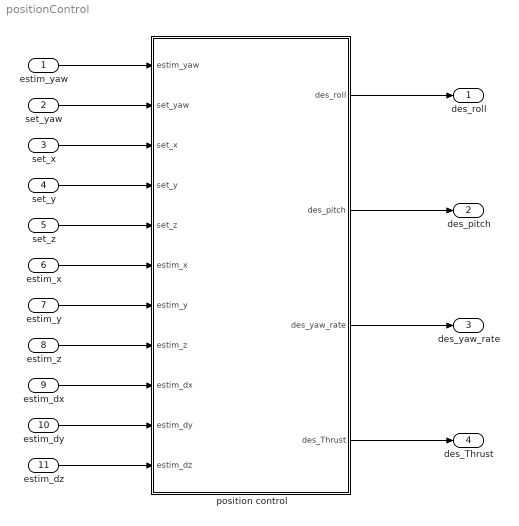
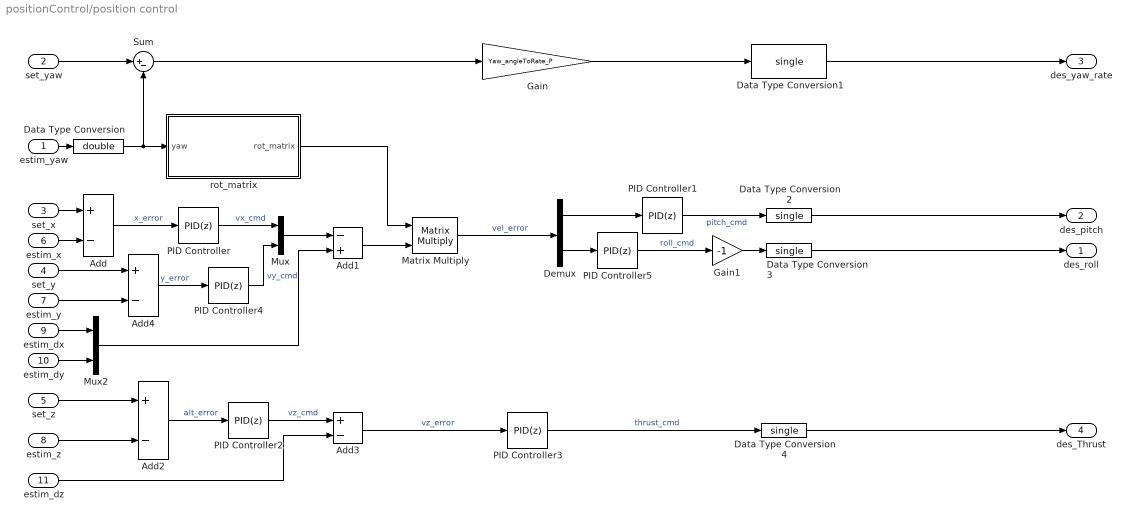
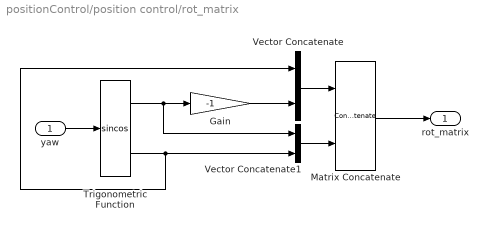
//
// Academic License - for use in teaching, academic research, and meeting
// course requirements at degree granting institutions only.  Not for
// government, commercial, or other organizational use.
//
// File: positionControl.cpp
//
// Code generated for Simulink model 'positionControl'.
//
// Model version                  : 1.7
// Simulink Coder version         : 9.3 (R2020a) 18-Nov-2019
// C/C++ source code generated on : Wed Aug 19 08:09:50 2020
//
// Target selection: ert.tlc
// Embedded hardware selection: ARM Compatible->ARM Cortex
// Code generation objectives: Unspecified
// Validation result: Not run
//
#include "positionControl.h"
#include "positionControl_private.h"

// Exported block parameters
real_T Yaw_angleToRate_P = 0.04;       // Variable: Yaw_angleToRate_P
                                          //  Referenced by: '<S1>/Gain'

real_T pos_x_D = 0.0;                  // Variable: pos_x_D
                                          //  Referenced by: '<S34>/Derivative Gain'

real_T pos_x_I = 0.02;                  // Variable: pos_x_I
                                          //  Referenced by: '<S37>/Integral Gain'

real_T pos_x_P = 0.2;                  // Variable: pos_x_P
                                          //  Referenced by: '<S45>/Proportional Gain'

real_T pos_x_vel_D = 0.001;            // Variable: pos_x_vel_D
                                          //  Referenced by: '<S82>/Derivative Gain'

real_T pos_x_vel_I = 0.02;             // Variable: pos_x_vel_I
                                          //  Referenced by: '<S85>/Integral Gain'

real_T pos_x_vel_P = 0.2;              // Variable: pos_x_vel_P
                                          //  Referenced by: '<S93>/Proportional Gain'

real_T pos_y_I = 0.02;                  // Variable: pos_y_I
                                          //  Referenced by: '<S229>/Integral Gain'

real_T pos_y_P = 0.2;                  // Variable: pos_y_P
                                          //  Referenced by: '<S237>/Proportional Gain'

real_T pos_y_vel_D = 0.001;            // Variable: pos_y_vel_D
                                          //  Referenced by: '<S274>/Derivative Gain'

real_T pos_y_vel_I = 0.02;             // Variable: pos_y_vel_I
                                          //  Referenced by: '<S277>/Integral Gain'

real_T pos_y_vel_P = 0.2;              // Variable: pos_y_vel_P
                                          //  Referenced by: '<S285>/Proportional Gain'

real_T pos_z_D = 0.0;                  // Variable: pos_z_D
                                          //  Referenced by: '<S130>/Derivative Gain'

real_T pos_z_I = 0.0;                  // Variable: pos_z_I
                                          //  Referenced by: '<S133>/Integral Gain'

real_T pos_z_P = 0.6;                  // Variable: pos_z_P
                                          //  Referenced by: '<S141>/Proportional Gain'

real_T pos_z_vel_D = 0.001;            // Variable: pos_z_vel_D
                                          //  Referenced by: '<S178>/Derivative Gain'

real_T pos_z_vel_I = 0.02;              // Variable: pos_z_vel_I
                                          //  Referenced by: '<S181>/Integral Gain'

real_T pos_z_vel_P = 0.4;              // Variable: pos_z_vel_P
                                          //  Referenced by: '<S189>/Proportional Gain'


// Model step function
void positionControlModelClass::step()
{
  real_T sinOut;
  real_T cosOut;
  real_T tmp;
  real_T tmp_0;
  real_T tmp_1;
  real_T u2;

  // DataTypeConversion: '<S1>/Data Type Conversion' incorporates:
  //   Inport: '<Root>/estim_yaw'

  positionControl_B.DataTypeConversion = positionControl_U.estim_yaw;

  // Trigonometry: '<S8>/Trigonometric Function'
  cosOut = positionControl_B.DataTypeConversion;
  sinOut = std::sin(cosOut);
  cosOut = std::cos(cosOut);
  positionControl_B.TrigonometricFunction_o1 = sinOut;
  positionControl_B.TrigonometricFunction_o2 = cosOut;

  // SignalConversion generated from: '<S8>/Vector Concatenate'
  positionControl_B.MatrixConcatenate[0] =
    positionControl_B.TrigonometricFunction_o2;

  // Gain: '<S8>/Gain'
  positionControl_B.MatrixConcatenate[1] = positionControl_P.Gain_Gain *
    positionControl_B.TrigonometricFunction_o1;

  // SignalConversion generated from: '<S8>/Vector Concatenate1'
  positionControl_B.MatrixConcatenate[2] =
    positionControl_B.TrigonometricFunction_o1;

  // SignalConversion generated from: '<S8>/Vector Concatenate1'
  positionControl_B.MatrixConcatenate[3] =
    positionControl_B.TrigonometricFunction_o2;

  // Sum: '<S1>/Add' incorporates:
  //   Inport: '<Root>/estim_x'
  //   Inport: '<Root>/set_x'

  positionControl_B.x_error = positionControl_U.set_x -
    positionControl_U.estim_x;

  // Gain: '<S45>/Proportional Gain'
  positionControl_B.ProportionalGain = pos_x_P * positionControl_B.x_error;

  // DiscreteIntegrator: '<S40>/Integrator'
  positionControl_B.Integrator = positionControl_DW.Integrator_DSTATE;

  // Gain: '<S34>/Derivative Gain'
  positionControl_B.DerivativeGain = pos_x_D * positionControl_B.x_error;

  // DiscreteIntegrator: '<S35>/Filter'
  positionControl_B.Filter = positionControl_DW.Filter_DSTATE;

  // Sum: '<S35>/SumD'
  positionControl_B.SumD = positionControl_B.DerivativeGain -
    positionControl_B.Filter;

  // Gain: '<S43>/Filter Coefficient'
  positionControl_B.FilterCoefficient = positionControl_P.PIDController_N *
    positionControl_B.SumD;

  // Sum: '<S49>/Sum'
  positionControl_B.Sum = positionControl_B.ProportionalGain +
    positionControl_B.Integrator + positionControl_B.FilterCoefficient;

  // Saturate: '<S47>/Saturation'
  cosOut = positionControl_B.Sum;
  sinOut = positionControl_P.PIDController_LowerSaturationLi;
  u2 = positionControl_P.PIDController_UpperSaturationLi;
  if (cosOut > u2) {
    positionControl_B.Saturation = u2;
  } else if (cosOut < sinOut) {
    positionControl_B.Saturation = sinOut;
  } else {
    positionControl_B.Saturation = cosOut;
  }

  // End of Saturate: '<S47>/Saturation'

  // Sum: '<S1>/Add4' incorporates:
  //   Inport: '<Root>/estim_y'
  //   Inport: '<Root>/set_y'

  positionControl_B.y_error = positionControl_U.set_y -
    positionControl_U.estim_y;

  // Gain: '<S237>/Proportional Gain'
  positionControl_B.ProportionalGain_p = pos_y_P * positionControl_B.y_error;

  // DiscreteIntegrator: '<S232>/Integrator'
  positionControl_B.Integrator_f = positionControl_DW.Integrator_DSTATE_k;

  // Gain: '<S226>/Derivative Gain'
  positionControl_B.DerivativeGain_n = positionControl_P.pos_y_D *
    positionControl_B.y_error;

  // DiscreteIntegrator: '<S227>/Filter'
  positionControl_B.Filter_p = positionControl_DW.Filter_DSTATE_m;

  // Sum: '<S227>/SumD'
  positionControl_B.SumD_k = positionControl_B.DerivativeGain_n -
    positionControl_B.Filter_p;

  // Gain: '<S235>/Filter Coefficient'
  positionControl_B.FilterCoefficient_n = positionControl_P.PIDController4_N *
    positionControl_B.SumD_k;

  // Sum: '<S241>/Sum'
  positionControl_B.Sum_k = positionControl_B.ProportionalGain_p +
    positionControl_B.Integrator_f + positionControl_B.FilterCoefficient_n;

  // Saturate: '<S239>/Saturation'
  cosOut = positionControl_B.Sum_k;
  sinOut = positionControl_P.PIDController4_LowerSaturationL;
  u2 = positionControl_P.PIDController4_UpperSaturationL;
  if (cosOut > u2) {
    positionControl_B.Saturation_o = u2;
  } else if (cosOut < sinOut) {
    positionControl_B.Saturation_o = sinOut;
  } else {
    positionControl_B.Saturation_o = cosOut;
  }

  // End of Saturate: '<S239>/Saturation'

  // Sum: '<S1>/Add1' incorporates:
  //   Inport: '<Root>/estim_dx'
  //   Inport: '<Root>/estim_dy'

  positionControl_B.Add1[0] = positionControl_U.estim_dx -
    positionControl_B.Saturation;
  positionControl_B.Add1[1] = positionControl_U.estim_dy -
    positionControl_B.Saturation_o;

  // Product: '<S1>/Matrix Multiply'
  cosOut = positionControl_B.MatrixConcatenate[0];
  sinOut = positionControl_B.MatrixConcatenate[1];
  u2 = positionControl_B.MatrixConcatenate[2];
  tmp = positionControl_B.MatrixConcatenate[3];
  tmp_0 = positionControl_B.Add1[0];
  tmp_1 = positionControl_B.Add1[1];
  cosOut *= tmp_0;
  cosOut += u2 * tmp_1;
  positionControl_B.vel_error[0] = cosOut;
  sinOut *= tmp_0;
  sinOut += tmp * tmp_1;
  positionControl_B.vel_error[1] = sinOut;

  // Gain: '<S285>/Proportional Gain'
  positionControl_B.ProportionalGain_m = pos_y_vel_P *
    positionControl_B.vel_error[1];

  // DiscreteIntegrator: '<S280>/Integrator'
  positionControl_B.Integrator_h = positionControl_DW.Integrator_DSTATE_f;

  // Gain: '<S274>/Derivative Gain'
  positionControl_B.DerivativeGain_c = pos_y_vel_D *
    positionControl_B.vel_error[1];

  // DiscreteIntegrator: '<S275>/Filter'
  positionControl_B.Filter_g = positionControl_DW.Filter_DSTATE_j;

  // Sum: '<S275>/SumD'
  positionControl_B.SumD_f = positionControl_B.DerivativeGain_c -
    positionControl_B.Filter_g;

  // Gain: '<S283>/Filter Coefficient'
  positionControl_B.FilterCoefficient_e = positionControl_P.PIDController5_N *
    positionControl_B.SumD_f;

  // Sum: '<S289>/Sum'
  positionControl_B.Sum_m = positionControl_B.ProportionalGain_m +
    positionControl_B.Integrator_h + positionControl_B.FilterCoefficient_e;

  // Saturate: '<S287>/Saturation'
  cosOut = positionControl_B.Sum_m;
  sinOut = positionControl_P.PIDController5_LowerSaturationL;
  u2 = positionControl_P.PIDController5_UpperSaturationL;
  if (cosOut > u2) {
    positionControl_B.Saturation_l = u2;
  } else if (cosOut < sinOut) {
    positionControl_B.Saturation_l = sinOut;
  } else {
    positionControl_B.Saturation_l = cosOut;
  }

  // End of Saturate: '<S287>/Saturation'

  // Gain: '<S1>/Gain1'
  positionControl_B.Gain1 = positionControl_P.Gain1_Gain *
    positionControl_B.Saturation_l;

  // Outport: '<Root>/des_roll' incorporates:
  //   DataTypeConversion: '<S1>/Data Type Conversion3'

  positionControl_Y.des_roll = static_cast<real32_T>(positionControl_B.Gain1);

  // Gain: '<S93>/Proportional Gain'
  positionControl_B.ProportionalGain_h = pos_x_vel_P *
    positionControl_B.vel_error[0];

  // DiscreteIntegrator: '<S88>/Integrator'
  positionControl_B.Integrator_c = positionControl_DW.Integrator_DSTATE_m;

  // Gain: '<S82>/Derivative Gain'
  positionControl_B.DerivativeGain_p = pos_x_vel_D *
    positionControl_B.vel_error[0];

  // DiscreteIntegrator: '<S83>/Filter'
  positionControl_B.Filter_i = positionControl_DW.Filter_DSTATE_d;

  // Sum: '<S83>/SumD'
  positionControl_B.SumD_h = positionControl_B.DerivativeGain_p -
    positionControl_B.Filter_i;

  // Gain: '<S91>/Filter Coefficient'
  positionControl_B.FilterCoefficient_f = positionControl_P.PIDController1_N *
    positionControl_B.SumD_h;

  // Sum: '<S97>/Sum'
  positionControl_B.Sum_o = positionControl_B.ProportionalGain_h +
    positionControl_B.Integrator_c + positionControl_B.FilterCoefficient_f;

  // Saturate: '<S95>/Saturation'
  cosOut = positionControl_B.Sum_o;
  sinOut = positionControl_P.PIDController1_LowerSaturationL;
  u2 = positionControl_P.PIDController1_UpperSaturationL;
  if (cosOut > u2) {
    positionControl_B.Saturation_j = u2;
  } else if (cosOut < sinOut) {
    positionControl_B.Saturation_j = sinOut;
  } else {
    positionControl_B.Saturation_j = cosOut;
  }

  // End of Saturate: '<S95>/Saturation'

  // Outport: '<Root>/des_pitch' incorporates:
  //   DataTypeConversion: '<S1>/Data Type Conversion2'

  positionControl_Y.des_pitch = static_cast<real32_T>
    (positionControl_B.Saturation_j);

  // Sum: '<S1>/Sum' incorporates:
  //   Inport: '<Root>/set_yaw'

  positionControl_B.Sum_my = positionControl_U.set_yaw -
    positionControl_B.DataTypeConversion;

  // Gain: '<S1>/Gain'
  positionControl_B.Gain = Yaw_angleToRate_P * positionControl_B.Sum_my;

  // Outport: '<Root>/des_yaw_rate' incorporates:
  //   DataTypeConversion: '<S1>/Data Type Conversion1'

  positionControl_Y.des_yaw_rate = static_cast<real32_T>(positionControl_B.Gain);

  // Sum: '<S1>/Add2' incorporates:
  //   Inport: '<Root>/estim_z'
  //   Inport: '<Root>/set_z'

  positionControl_B.alt_error = positionControl_U.set_z -
    positionControl_U.estim_z;

  // Gain: '<S141>/Proportional Gain'
  positionControl_B.ProportionalGain_p4 = pos_z_P * positionControl_B.alt_error;

  // DiscreteIntegrator: '<S136>/Integrator'
  positionControl_B.Integrator_b = positionControl_DW.Integrator_DSTATE_j;

  // Gain: '<S130>/Derivative Gain'
  positionControl_B.DerivativeGain_b = pos_z_D * positionControl_B.alt_error;

  // DiscreteIntegrator: '<S131>/Filter'
  positionControl_B.Filter_o = positionControl_DW.Filter_DSTATE_mf;

  // Sum: '<S131>/SumD'
  positionControl_B.SumD_m = positionControl_B.DerivativeGain_b -
    positionControl_B.Filter_o;

  // Gain: '<S139>/Filter Coefficient'
  positionControl_B.FilterCoefficient_d = positionControl_P.PIDController2_N *
    positionControl_B.SumD_m;

  // Sum: '<S145>/Sum'
  positionControl_B.Sum_f = positionControl_B.ProportionalGain_p4 +
    positionControl_B.Integrator_b + positionControl_B.FilterCoefficient_d;

  // Saturate: '<S143>/Saturation'
  cosOut = positionControl_B.Sum_f;
  sinOut = positionControl_P.PIDController2_LowerSaturationL;
  u2 = positionControl_P.PIDController2_UpperSaturationL;
  if (cosOut > u2) {
    positionControl_B.Saturation_m = u2;
  } else if (cosOut < sinOut) {
    positionControl_B.Saturation_m = sinOut;
  } else {
    positionControl_B.Saturation_m = cosOut;
  }

  // End of Saturate: '<S143>/Saturation'

  // Sum: '<S1>/Add3' incorporates:
  //   Inport: '<Root>/estim_dz'

  positionControl_B.vz_error = positionControl_B.Saturation_m -
    positionControl_U.estim_dz;

  // Gain: '<S189>/Proportional Gain'
  positionControl_B.ProportionalGain_k = pos_z_vel_P *
    positionControl_B.vz_error;

  // DiscreteIntegrator: '<S184>/Integrator'
  positionControl_B.Integrator_p = positionControl_DW.Integrator_DSTATE_b;

  // Gain: '<S178>/Derivative Gain'
  positionControl_B.DerivativeGain_pu = pos_z_vel_D * positionControl_B.vz_error;

  // DiscreteIntegrator: '<S179>/Filter'
  positionControl_B.Filter_m = positionControl_DW.Filter_DSTATE_e;

  // Sum: '<S179>/SumD'
  positionControl_B.SumD_b = positionControl_B.DerivativeGain_pu -
    positionControl_B.Filter_m;

  // Gain: '<S187>/Filter Coefficient'
  positionControl_B.FilterCoefficient_a = positionControl_P.PIDController3_N *
    positionControl_B.SumD_b;

  // Sum: '<S193>/Sum'
  positionControl_B.Sum_c = positionControl_B.ProportionalGain_k +
    positionControl_B.Integrator_p + positionControl_B.FilterCoefficient_a;

  // Saturate: '<S191>/Saturation'
  cosOut = positionControl_B.Sum_c;
  sinOut = positionControl_P.PIDController3_LowerSaturationL;
  u2 = positionControl_P.PIDController3_UpperSaturationL;
  if (cosOut > u2) {
    positionControl_B.Saturation_li = u2;
  } else if (cosOut < sinOut) {
    positionControl_B.Saturation_li = sinOut;
  } else {
    positionControl_B.Saturation_li = cosOut;
  }

  // End of Saturate: '<S191>/Saturation'

  // Outport: '<Root>/des_Thrust' incorporates:
  //   DataTypeConversion: '<S1>/Data Type Conversion4'

  positionControl_Y.des_Thrust = static_cast<real32_T>
    (positionControl_B.Saturation_li);

  // Gain: '<S37>/Integral Gain'
  positionControl_B.IntegralGain = pos_x_I * positionControl_B.x_error;

  // Gain: '<S81>/ZeroGain'
  positionControl_B.ZeroGain = positionControl_P.ZeroGain_Gain *
    positionControl_B.Sum_o;

  // DeadZone: '<S81>/DeadZone'
  if (positionControl_B.Sum_o >
      positionControl_P.PIDController1_UpperSaturationL) {
    positionControl_B.DeadZone = positionControl_B.Sum_o -
      positionControl_P.PIDController1_UpperSaturationL;
  } else if (positionControl_B.Sum_o >=
             positionControl_P.PIDController1_LowerSaturationL) {
    positionControl_B.DeadZone = 0.0;
  } else {
    positionControl_B.DeadZone = positionControl_B.Sum_o -
      positionControl_P.PIDController1_LowerSaturationL;
  }

  // End of DeadZone: '<S81>/DeadZone'

  // RelationalOperator: '<S81>/NotEqual'
  positionControl_B.NotEqual = positionControl_B.ZeroGain !=
    positionControl_B.DeadZone;

  // Signum: '<S81>/SignPreSat'
  cosOut = positionControl_B.DeadZone;
  if (cosOut < 0.0) {
    positionControl_B.SignPreSat = -1.0;
  } else if (cosOut > 0.0) {
    positionControl_B.SignPreSat = 1.0;
  } else {
    positionControl_B.SignPreSat = cosOut;
  }

  // End of Signum: '<S81>/SignPreSat'

  // DataTypeConversion: '<S81>/DataTypeConv1'
  cosOut = std::fmod(std::floor(positionControl_B.SignPreSat), 256.0);
  positionControl_B.DataTypeConv1 = static_cast<int8_T>(cosOut < 0.0 ?
    static_cast<int32_T>(static_cast<int8_T>(-static_cast<int8_T>
    (static_cast<uint8_T>(-cosOut)))) : static_cast<int32_T>(static_cast<int8_T>
    (static_cast<uint8_T>(cosOut))));

  // Gain: '<S85>/Integral Gain'
  positionControl_B.IntegralGain_k = pos_x_vel_I * positionControl_B.vel_error[0];

  // Signum: '<S81>/SignPreIntegrator'
  cosOut = positionControl_B.IntegralGain_k;
  if (cosOut < 0.0) {
    positionControl_B.SignPreIntegrator = -1.0;
  } else if (cosOut > 0.0) {
    positionControl_B.SignPreIntegrator = 1.0;
  } else {
    positionControl_B.SignPreIntegrator = cosOut;
  }

  // End of Signum: '<S81>/SignPreIntegrator'

  // DataTypeConversion: '<S81>/DataTypeConv2'
  cosOut = std::fmod(std::floor(positionControl_B.SignPreIntegrator), 256.0);
  positionControl_B.DataTypeConv2 = static_cast<int8_T>(cosOut < 0.0 ?
    static_cast<int32_T>(static_cast<int8_T>(-static_cast<int8_T>(static_cast<
    uint8_T>(-cosOut)))) : static_cast<int32_T>(static_cast<int8_T>(static_cast<
    uint8_T>(cosOut))));

  // RelationalOperator: '<S81>/Equal1'
  positionControl_B.Equal1 = positionControl_B.DataTypeConv1 ==
    positionControl_B.DataTypeConv2;

  // Logic: '<S81>/AND3'
  positionControl_B.AND3 = positionControl_B.NotEqual &&
    positionControl_B.Equal1;

  // Switch: '<S81>/Switch' incorporates:
  //   Constant: '<S81>/Constant1'

  if (positionControl_B.AND3) {
    positionControl_B.Switch = positionControl_P.Constant1_Value;
  } else {
    positionControl_B.Switch = positionControl_B.IntegralGain_k;
  }

  // End of Switch: '<S81>/Switch'

  // Gain: '<S229>/Integral Gain'
  positionControl_B.IntegralGain_o = pos_y_I * positionControl_B.y_error;

  // Gain: '<S273>/ZeroGain'
  positionControl_B.ZeroGain_b = positionControl_P.ZeroGain_Gain_m *
    positionControl_B.Sum_m;

  // DeadZone: '<S273>/DeadZone'
  if (positionControl_B.Sum_m >
      positionControl_P.PIDController5_UpperSaturationL) {
    positionControl_B.DeadZone_m = positionControl_B.Sum_m -
      positionControl_P.PIDController5_UpperSaturationL;
  } else if (positionControl_B.Sum_m >=
             positionControl_P.PIDController5_LowerSaturationL) {
    positionControl_B.DeadZone_m = 0.0;
  } else {
    positionControl_B.DeadZone_m = positionControl_B.Sum_m -
      positionControl_P.PIDController5_LowerSaturationL;
  }

  // End of DeadZone: '<S273>/DeadZone'

  // RelationalOperator: '<S273>/NotEqual'
  positionControl_B.NotEqual_p = positionControl_B.ZeroGain_b !=
    positionControl_B.DeadZone_m;

  // Signum: '<S273>/SignPreSat'
  cosOut = positionControl_B.DeadZone_m;
  if (cosOut < 0.0) {
    positionControl_B.SignPreSat_n = -1.0;
  } else if (cosOut > 0.0) {
    positionControl_B.SignPreSat_n = 1.0;
  } else {
    positionControl_B.SignPreSat_n = cosOut;
  }

  // End of Signum: '<S273>/SignPreSat'

  // DataTypeConversion: '<S273>/DataTypeConv1'
  cosOut = std::fmod(std::floor(positionControl_B.SignPreSat_n), 256.0);
  positionControl_B.DataTypeConv1_e = static_cast<int8_T>(cosOut < 0.0 ?
    static_cast<int32_T>(static_cast<int8_T>(-static_cast<int8_T>
    (static_cast<uint8_T>(-cosOut)))) : static_cast<int32_T>(static_cast<int8_T>
    (static_cast<uint8_T>(cosOut))));

  // Gain: '<S277>/Integral Gain'
  positionControl_B.IntegralGain_b = pos_y_vel_I * positionControl_B.vel_error[1];

  // Signum: '<S273>/SignPreIntegrator'
  cosOut = positionControl_B.IntegralGain_b;
  if (cosOut < 0.0) {
    positionControl_B.SignPreIntegrator_n = -1.0;
  } else if (cosOut > 0.0) {
    positionControl_B.SignPreIntegrator_n = 1.0;
  } else {
    positionControl_B.SignPreIntegrator_n = cosOut;
  }

  // End of Signum: '<S273>/SignPreIntegrator'

  // DataTypeConversion: '<S273>/DataTypeConv2'
  cosOut = std::fmod(std::floor(positionControl_B.SignPreIntegrator_n), 256.0);
  positionControl_B.DataTypeConv2_a = static_cast<int8_T>(cosOut < 0.0 ?
    static_cast<int32_T>(static_cast<int8_T>(-static_cast<int8_T>
    (static_cast<uint8_T>(-cosOut)))) : static_cast<int32_T>(static_cast<int8_T>
    (static_cast<uint8_T>(cosOut))));

  // RelationalOperator: '<S273>/Equal1'
  positionControl_B.Equal1_c = positionControl_B.DataTypeConv1_e ==
    positionControl_B.DataTypeConv2_a;

  // Logic: '<S273>/AND3'
  positionControl_B.AND3_n = positionControl_B.NotEqual_p &&
    positionControl_B.Equal1_c;

  // Switch: '<S273>/Switch' incorporates:
  //   Constant: '<S273>/Constant1'

  if (positionControl_B.AND3_n) {
    positionControl_B.Switch_m = positionControl_P.Constant1_Value_n;
  } else {
    positionControl_B.Switch_m = positionControl_B.IntegralGain_b;
  }

  // End of Switch: '<S273>/Switch'

  // Gain: '<S133>/Integral Gain'
  positionControl_B.IntegralGain_f = pos_z_I * positionControl_B.alt_error;

  // Gain: '<S177>/ZeroGain'
  positionControl_B.ZeroGain_e = positionControl_P.ZeroGain_Gain_h *
    positionControl_B.Sum_c;

  // DeadZone: '<S177>/DeadZone'
  if (positionControl_B.Sum_c >
      positionControl_P.PIDController3_UpperSaturationL) {
    positionControl_B.DeadZone_e = positionControl_B.Sum_c -
      positionControl_P.PIDController3_UpperSaturationL;
  } else if (positionControl_B.Sum_c >=
             positionControl_P.PIDController3_LowerSaturationL) {
    positionControl_B.DeadZone_e = 0.0;
  } else {
    positionControl_B.DeadZone_e = positionControl_B.Sum_c -
      positionControl_P.PIDController3_LowerSaturationL;
  }

  // End of DeadZone: '<S177>/DeadZone'

  // RelationalOperator: '<S177>/NotEqual'
  positionControl_B.NotEqual_o = positionControl_B.ZeroGain_e !=
    positionControl_B.DeadZone_e;

  // Signum: '<S177>/SignPreSat'
  cosOut = positionControl_B.DeadZone_e;
  if (cosOut < 0.0) {
    positionControl_B.SignPreSat_h = -1.0;
  } else if (cosOut > 0.0) {
    positionControl_B.SignPreSat_h = 1.0;
  } else {
    positionControl_B.SignPreSat_h = cosOut;
  }

  // End of Signum: '<S177>/SignPreSat'

  // DataTypeConversion: '<S177>/DataTypeConv1'
  cosOut = std::fmod(std::floor(positionControl_B.SignPreSat_h), 256.0);
  positionControl_B.DataTypeConv1_m = static_cast<int8_T>(cosOut < 0.0 ?
    static_cast<int32_T>(static_cast<int8_T>(-static_cast<int8_T>
    (static_cast<uint8_T>(-cosOut)))) : static_cast<int32_T>(static_cast<int8_T>
    (static_cast<uint8_T>(cosOut))));

  // Gain: '<S181>/Integral Gain'
  positionControl_B.IntegralGain_l = pos_z_vel_I * positionControl_B.vz_error;

  // Signum: '<S177>/SignPreIntegrator'
  cosOut = positionControl_B.IntegralGain_l;
  if (cosOut < 0.0) {
    positionControl_B.SignPreIntegrator_d = -1.0;
  } else if (cosOut > 0.0) {
    positionControl_B.SignPreIntegrator_d = 1.0;
  } else {
    positionControl_B.SignPreIntegrator_d = cosOut;
  }

  // End of Signum: '<S177>/SignPreIntegrator'

  // DataTypeConversion: '<S177>/DataTypeConv2'
  cosOut = std::fmod(std::floor(positionControl_B.SignPreIntegrator_d), 256.0);
  positionControl_B.DataTypeConv2_j = static_cast<int8_T>(cosOut < 0.0 ?
    static_cast<int32_T>(static_cast<int8_T>(-static_cast<int8_T>
    (static_cast<uint8_T>(-cosOut)))) : static_cast<int32_T>(static_cast<int8_T>
    (static_cast<uint8_T>(cosOut))));

  // RelationalOperator: '<S177>/Equal1'
  positionControl_B.Equal1_i = positionControl_B.DataTypeConv1_m ==
    positionControl_B.DataTypeConv2_j;

  // Logic: '<S177>/AND3'
  positionControl_B.AND3_nv = positionControl_B.NotEqual_o &&
    positionControl_B.Equal1_i;

  // Switch: '<S177>/Switch' incorporates:
  //   Constant: '<S177>/Constant1'

  if (positionControl_B.AND3_nv) {
    positionControl_B.Switch_e = positionControl_P.Constant1_Value_k;
  } else {
    positionControl_B.Switch_e = positionControl_B.IntegralGain_l;
  }

  // End of Switch: '<S177>/Switch'

  // Update for DiscreteIntegrator: '<S40>/Integrator'
  positionControl_DW.Integrator_DSTATE += positionControl_P.Integrator_gainval *
    positionControl_B.IntegralGain;

  // Update for DiscreteIntegrator: '<S35>/Filter'
  positionControl_DW.Filter_DSTATE += positionControl_P.Filter_gainval *
    positionControl_B.FilterCoefficient;

  // Update for DiscreteIntegrator: '<S232>/Integrator'
  positionControl_DW.Integrator_DSTATE_k +=
    positionControl_P.Integrator_gainval_l * positionControl_B.IntegralGain_o;

  // Update for DiscreteIntegrator: '<S227>/Filter'
  positionControl_DW.Filter_DSTATE_m += positionControl_P.Filter_gainval_l *
    positionControl_B.FilterCoefficient_n;

  // Update for DiscreteIntegrator: '<S280>/Integrator'
  positionControl_DW.Integrator_DSTATE_f +=
    positionControl_P.Integrator_gainval_k * positionControl_B.Switch_m;

  // Update for DiscreteIntegrator: '<S275>/Filter'
  positionControl_DW.Filter_DSTATE_j += positionControl_P.Filter_gainval_i *
    positionControl_B.FilterCoefficient_e;

  // Update for DiscreteIntegrator: '<S88>/Integrator'
  positionControl_DW.Integrator_DSTATE_m +=
    positionControl_P.Integrator_gainval_lc * positionControl_B.Switch;

  // Update for DiscreteIntegrator: '<S83>/Filter'
  positionControl_DW.Filter_DSTATE_d += positionControl_P.Filter_gainval_l5 *
    positionControl_B.FilterCoefficient_f;

  // Update for DiscreteIntegrator: '<S136>/Integrator'
  positionControl_DW.Integrator_DSTATE_j +=
    positionControl_P.Integrator_gainval_o * positionControl_B.IntegralGain_f;

  // Update for DiscreteIntegrator: '<S131>/Filter'
  positionControl_DW.Filter_DSTATE_mf += positionControl_P.Filter_gainval_f *
    positionControl_B.FilterCoefficient_d;

  // Update for DiscreteIntegrator: '<S184>/Integrator'
  positionControl_DW.Integrator_DSTATE_b +=
    positionControl_P.Integrator_gainval_a * positionControl_B.Switch_e;

  // Update for DiscreteIntegrator: '<S179>/Filter'
  positionControl_DW.Filter_DSTATE_e += positionControl_P.Filter_gainval_g *
    positionControl_B.FilterCoefficient_a;
}
